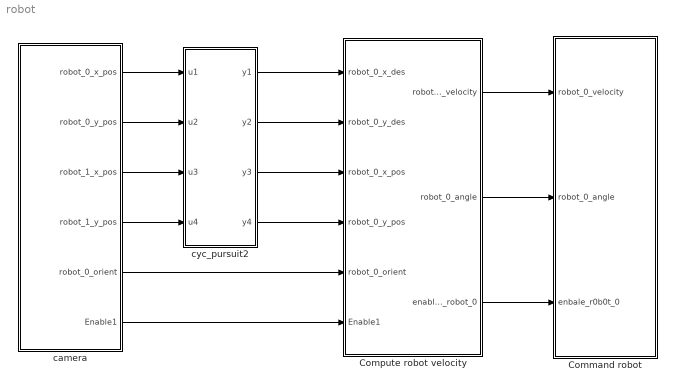
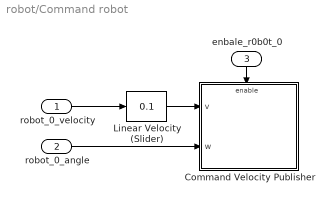
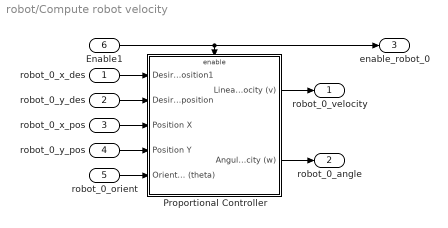
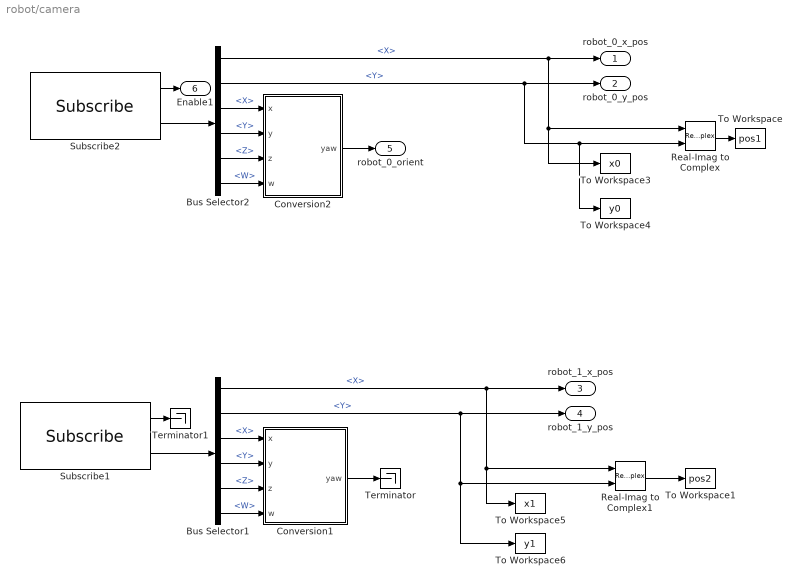
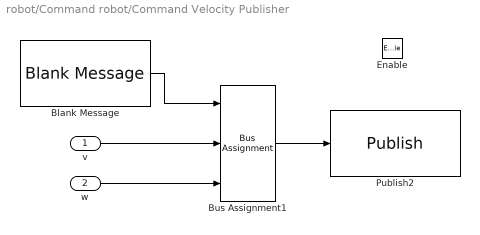
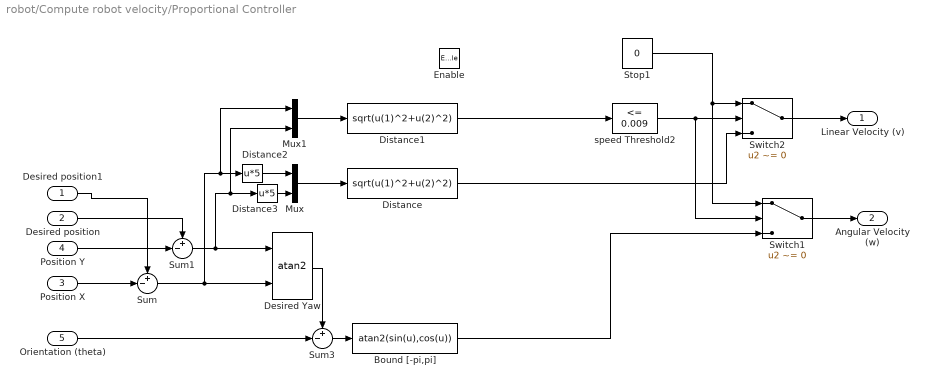
== matlab function robot/cyc_pursuit2 ==
function [y1, y2, y3, y4] = fcn(u1, u2, u3, u4)
%#codegen

y1 = ((1-0.2)*u1+(u3*0.2)+(0.4635*0.2));
y2 = ((1-0.2)*u2+(0.2*u4)+(1.4266*0.2));
y3=u1;
y4=u2;




%       y1 = ((1-0.2)*u1+(u3*0.2)+(1.5451*0.2));
%         y2 = ((1-0.2)*u2+(0.2*u4)+(4.7553*0.2));
%         y3 = ((1-0.2)*u3+(u5*0.2)-(4.0451*0.2));
%         y4 = ((1-0.2)*u4+(u6*0.2)+(2.9389*0.2));
%         y5 = ((1-0.2)*u5+(u7*0.2)-(4.0451*0.2));
%         y6 = ((1-0.2)*u6+(u8*0.2)-(2.9389*0.2));
%         y7 = ((1-0.2)*u7+(u9*0.2)+(1.5451*0.2));
%         y8 = ((1-0.2)*u8+(u10*0.2)-(4.7553*0.2));
%         y9 = ((1-0.2)*u9+(u1*0.2)+(5*0.2));
%         y10 = ((1-0.2)*u10+(u2*0.2)+(0*0.2));

== matlab function robot/camera/Conversion1 ==
function yaw  = quat2eul(x,y,z,w)
%#codegen

% Convert the quaternion to a yaw angle (zyx euler angle)
eul = quat2eul([w,x,y,z]);
yaw = eul(1);

end

== matlab function robot/camera/Conversion2 ==
function yaw  = quat2eul(x,y,z,w)
%#codegen

% Convert the quaternion to a yaw angle (zyx euler angle)
eul = quat2eul([w,x,y,z]);
yaw = eul(1);

end

//
// Academic License - for use in teaching, academic research, and meeting
// course requirements at degree granting institutions only.  Not for
// government, commercial, or other organizational use.
//
// File: robot.cpp
//
// Code generated for Simulink model 'robot'.
//
// Model version                  : 1.11
// Simulink Coder version         : 8.11 (R2016b) 25-Aug-2016
// C/C++ source code generated on : Fri Dec 30 17:22:59 2016
//
// Target selection: ert.tlc
// Embedded hardware selection: Generic->Unspecified (assume 32-bit Generic)
// Code generation objectives: Unspecified
// Validation result: Not run
//
#include "robot.h"
#include "robot_private.h"
#define robot_MessageQueueLen          (105)
#define robot_MessageQueueLen_h        (1)

real_T rt_atan2d_snf(real_T u0, real_T u1)
{
  real_T y;
  int32_T u0_0;
  int32_T u1_0;
  if (rtIsNaN(u0) || rtIsNaN(u1)) {
    y = (rtNaN);
  } else if (rtIsInf(u0) && rtIsInf(u1)) {
    if (u0 > 0.0) {
      u0_0 = 1;
    } else {
      u0_0 = -1;
    }

    if (u1 > 0.0) {
      u1_0 = 1;
    } else {
      u1_0 = -1;
    }

    y = atan2((real_T)u0_0, (real_T)u1_0);
  } else if (u1 == 0.0) {
    if (u0 > 0.0) {
      y = RT_PI / 2.0;
    } else if (u0 < 0.0) {
      y = -(RT_PI / 2.0);
    } else {
      y = 0.0;
    }
  } else {
    y = atan2(u0, u1);
  }

  return y;
}

//
// Output and update for atomic system:
//    '<S3>/Conversion1'
//    '<S3>/Conversion2'
//
void robot_Conversion1(real_T rtu_x, real_T rtu_y, real_T rtu_z, real_T rtu_w,
  B_Conversion1_robot_T *localB)
{
  real_T b_y;
  real_T q_idx_0;
  real_T q_idx_1;
  real_T q_idx_2;

  //  Convert the quaternion to a yaw angle (zyx euler angle)
  // MATLAB Function 'camera/Conversion1': '<S11>:1'
  // '<S11>:1:5' eul = quat2eul([w,x,y,z]);
  b_y = 1.0 / sqrt(((rtu_w * rtu_w + rtu_x * rtu_x) + rtu_y * rtu_y) + rtu_z *
                   rtu_z);
  q_idx_0 = rtu_w * b_y;
  q_idx_1 = rtu_x * b_y;
  q_idx_2 = rtu_y * b_y;
  b_y *= rtu_z;

  // '<S11>:1:6' yaw = eul(1);
  localB->yaw = rt_atan2d_snf((q_idx_1 * q_idx_2 + q_idx_0 * b_y) * 2.0,
    ((q_idx_0 * q_idx_0 + q_idx_1 * q_idx_1) - q_idx_2 * q_idx_2) - b_y * b_y);
}

real_T rt_powd_snf(real_T u0, real_T u1)
{
  real_T y;
  real_T tmp;
  real_T tmp_0;
  if (rtIsNaN(u0) || rtIsNaN(u1)) {
    y = (rtNaN);
  } else {
    tmp = fabs(u0);
    tmp_0 = fabs(u1);
    if (rtIsInf(u1)) {
      if (tmp == 1.0) {
        y = (rtNaN);
      } else if (tmp > 1.0) {
        if (u1 > 0.0) {
          y = (rtInf);
        } else {
          y = 0.0;
        }
      } else if (u1 > 0.0) {
        y = 0.0;
      } else {
        y = (rtInf);
      }
    } else if (tmp_0 == 0.0) {
      y = 1.0;
    } else if (tmp_0 == 1.0) {
      if (u1 > 0.0) {
        y = u0;
      } else {
        y = 1.0 / u0;
      }
    } else if (u1 == 2.0) {
      y = u0 * u0;
    } else if ((u1 == 0.5) && (u0 >= 0.0)) {
      y = sqrt(u0);
    } else if ((u0 < 0.0) && (u1 > floor(u1))) {
      y = (rtNaN);
    } else {
      y = pow(u0, u1);
    }
  }

  return y;
}

// Model step function
void robot_0ModelClass::step()
{
  boolean_T varargout_1;
  boolean_T varargout_1_0;

  // Outputs for Atomic SubSystem: '<S3>/Subscribe2'
  // Start for MATLABSystem: '<S14>/SourceBlock' incorporates:
  //   Inport: '<S16>/In1'
  //   MATLABSystem: '<S14>/SourceBlock'

  varargout_1 = Sub_robot_11.getLatestMessage(&robot_B.varargout_2);

  // Outputs for Enabled SubSystem: '<S14>/Enabled Subsystem' incorporates:
  //   EnablePort: '<S16>/Enable'

  if (varargout_1) {
    robot_B.In1 = robot_B.varargout_2;
  }

  // End of Outputs for SubSystem: '<S14>/Enabled Subsystem'
  // End of Outputs for SubSystem: '<S3>/Subscribe2'

  // Outputs for Atomic SubSystem: '<S3>/Subscribe1'
  // Start for MATLABSystem: '<S13>/SourceBlock' incorporates:
  //   Inport: '<S15>/In1'
  //   MATLABSystem: '<S13>/SourceBlock'

  varargout_1_0 = Sub_robot_10.getLatestMessage(&robot_B.varargout_2);

  // Outputs for Enabled SubSystem: '<S13>/Enabled Subsystem' incorporates:
  //   EnablePort: '<S15>/Enable'

  if (varargout_1_0) {
    robot_B.In1_d = robot_B.varargout_2;
  }

  // End of Start for MATLABSystem: '<S13>/SourceBlock'
  // End of Outputs for SubSystem: '<S13>/Enabled Subsystem'
  // End of Outputs for SubSystem: '<S3>/Subscribe1'

  // MATLAB Function: '<S3>/Conversion2'
  // MATLAB Function 'cyc_pursuit2': '<S4>:1'
  // '<S4>:1:4' y1 = ((1-0.2)*u1+(u3*0.2)+(0.4635*0.2));
  // '<S4>:1:5' y2 = ((1-0.2)*u2+(0.2*u4)+(1.4266*0.2));
  // '<S4>:1:6' y3=u1;
  // '<S4>:1:7' y4=u2;
  //        y1 = ((1-0.2)*u1+(u3*0.2)+(1.5451*0.2));
  //          y2 = ((1-0.2)*u2+(0.2*u4)+(4.7553*0.2));
  //          y3 = ((1-0.2)*u3+(u5*0.2)-(4.0451*0.2));
  //          y4 = ((1-0.2)*u4+(u6*0.2)+(2.9389*0.2));
  //          y5 = ((1-0.2)*u5+(u7*0.2)-(4.0451*0.2));
  //          y6 = ((1-0.2)*u6+(u8*0.2)-(2.9389*0.2));
  //          y7 = ((1-0.2)*u7+(u9*0.2)+(1.5451*0.2));
  //          y8 = ((1-0.2)*u8+(u10*0.2)-(4.7553*0.2));
  //          y9 = ((1-0.2)*u9+(u1*0.2)+(5*0.2));
  //          y10 = ((1-0.2)*u10+(u2*0.2)+(0*0.2));
  robot_Conversion1(robot_B.In1.Pose.Orientation.X,
                    robot_B.In1.Pose.Orientation.Y,
                    robot_B.In1.Pose.Orientation.Z,
                    robot_B.In1.Pose.Orientation.W, &robot_B.sf_Conversion2);

  // Outputs for Enabled SubSystem: '<S1>/Command Velocity Publisher' incorporates:
  //   EnablePort: '<S5>/Enable'

  // Outputs for Enabled SubSystem: '<S2>/Proportional Controller' incorporates:
  //   EnablePort: '<S9>/Enable'

  // Outputs for Atomic SubSystem: '<S3>/Subscribe2'
  // Start for MATLABSystem: '<S14>/SourceBlock' incorporates:
  //   MATLABSystem: '<S14>/SourceBlock'

  if (varargout_1) {
    // Sum: '<S9>/Sum1' incorporates:
    //   MATLAB Function: '<Root>/cyc_pursuit2'
    //   SignalConversion: '<S3>/SigConversion_InsertedFor_Bus Selector1_at_outport_1'
    //   SignalConversion: '<S3>/SigConversion_InsertedFor_Bus Selector2_at_outport_1'

    robot_B.Sum1 = ((0.8 * robot_B.In1.Pose.Position.Y + 0.2 *
                     robot_B.In1_d.Pose.Position.Y) + 0.28532) -
      robot_B.In1.Pose.Position.Y;

    // Sum: '<S9>/Sum' incorporates:
    //   MATLAB Function: '<Root>/cyc_pursuit2'
    //   SignalConversion: '<S3>/SigConversion_InsertedFor_Bus Selector1_at_outport_0'
    //   SignalConversion: '<S3>/SigConversion_InsertedFor_Bus Selector2_at_outport_0'

    robot_B.Sum = ((0.8 * robot_B.In1.Pose.Position.X +
                    robot_B.In1_d.Pose.Position.X * 0.2) + 0.0927) -
      robot_B.In1.Pose.Position.X;

    // Fcn: '<S9>/Distance1'
    robot_B.Sum3 = rt_powd_snf(robot_B.Sum, 2.0) + rt_powd_snf(robot_B.Sum1, 2.0);
    if (robot_B.Sum3 < 0.0) {
      robot_B.Sum3 = -sqrt(-robot_B.Sum3);
    } else {
      robot_B.Sum3 = sqrt(robot_B.Sum3);
    }

    // End of Fcn: '<S9>/Distance1'

    // Switch: '<S9>/Switch1' incorporates:
    //   Constant: '<S10>/Constant'
    //   Constant: '<S9>/Stop1'
    //   Fcn: '<S9>/Bound [-pi,pi]'
    //   RelationalOperator: '<S10>/Compare'
    //   Switch: '<S9>/Switch2'

    if (robot_B.Sum3 <= robot_P.speedThreshold2_const) {
      robot_B.Switch1 = robot_P.Stop1_Value;
      robot_B.Sum1 = robot_P.Stop1_Value;
    } else {
      // Sum: '<S9>/Sum3' incorporates:
      //   Trigonometry: '<S9>/Desired Yaw'

      robot_B.Sum3 = rt_atan2d_snf(robot_B.Sum1, robot_B.Sum) -
        robot_B.sf_Conversion2.yaw;
      robot_B.Switch1 = rt_atan2d_snf(sin(robot_B.Sum3), cos(robot_B.Sum3));

      // Fcn: '<S9>/Distance3' incorporates:
      //   Fcn: '<S9>/Bound [-pi,pi]'

      robot_B.Sum1 *= 5.0;

      // Fcn: '<S9>/Distance2'
      robot_B.Sum *= 5.0;

      // Fcn: '<S9>/Distance'
      robot_B.Sum3 = rt_powd_snf(robot_B.Sum, 2.0) + rt_powd_snf(robot_B.Sum1,
        2.0);
      if (robot_B.Sum3 < 0.0) {
        robot_B.Sum1 = -sqrt(-robot_B.Sum3);
      } else {
        robot_B.Sum1 = sqrt(robot_B.Sum3);
      }

      // End of Fcn: '<S9>/Distance'
    }

    // End of Switch: '<S9>/Switch1'

    // BusAssignment: '<S5>/Bus Assignment1' incorporates:
    //   Constant: '<S7>/Constant'
    //   Gain: '<S6>/Slider Gain'

    robot_B.BusAssignment1 = robot_P.Constant_Value_p;
    robot_B.BusAssignment1.Linear.X = robot_P.LinearVelocitySlider_gain *
      robot_B.Sum1;
    robot_B.BusAssignment1.Angular.Z = robot_B.Switch1;

    // Outputs for Atomic SubSystem: '<S5>/Publish2'
    // Start for MATLABSystem: '<S8>/SinkBlock' incorporates:
    //   MATLABSystem: '<S8>/SinkBlock'

    Pub_robot_75.publish(&robot_B.BusAssignment1);

    // End of Outputs for SubSystem: '<S5>/Publish2'
  }

  // End of Outputs for SubSystem: '<S3>/Subscribe2'
  // End of Outputs for SubSystem: '<S2>/Proportional Controller'
  // End of Outputs for SubSystem: '<S1>/Command Velocity Publisher'

  // MATLAB Function: '<S3>/Conversion1'
  robot_Conversion1(robot_B.In1_d.Pose.Orientation.X,
                    robot_B.In1_d.Pose.Orientation.Y,
                    robot_B.In1_d.Pose.Orientation.Z,
                    robot_B.In1_d.Pose.Orientation.W, &robot_B.sf_Conversion1);
}
